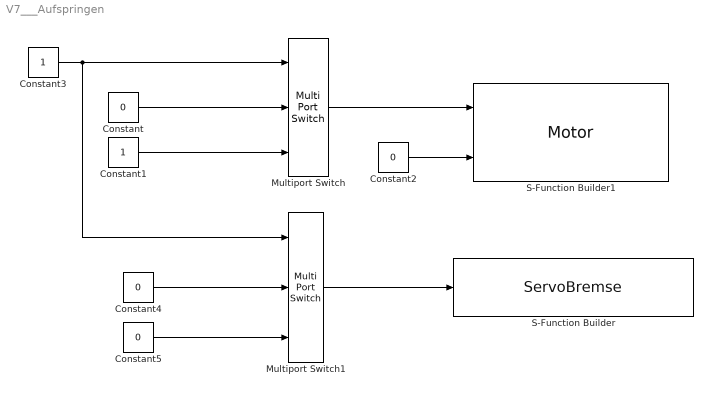
/*
 * Academic License - for use in teaching, academic research, and meeting
 * course requirements at degree granting institutions only.  Not for
 * government, commercial, or other organizational use.
 *
 * File: V7___Aufspringen.c
 *
 * Code generated for Simulink model 'V7___Aufspringen'.
 *
 * Model version                  : 1.8
 * Simulink Coder version         : 8.10 (R2016a) 10-Feb-2016
 * C/C++ source code generated on : Sun Aug 28 14:40:47 2016
 *
 * Target selection: ert.tlc
 * Embedded hardware selection: ARM Compatible->ARM Cortex
 * Code generation objectives: Unspecified
 * Validation result: Not run
 */

#include "V7___Aufspringen.h"
#include "V7___Aufspringen_private.h"
#include "V7___Aufspringen_dt.h"

/* Block signals (auto storage) */
B_V7___Aufspringen_T V7___Aufspringen_B;

/* Real-time model */
RT_MODEL_V7___Aufspringen_T V7___Aufspringen_M_;
RT_MODEL_V7___Aufspringen_T *const V7___Aufspringen_M = &V7___Aufspringen_M_;

/* Model step function */
void V7___Aufspringen_step(void)
{
  /* MultiPortSwitch: '<Root>/Multiport Switch1' incorporates:
   *  Constant: '<Root>/Constant3'
   *  Constant: '<Root>/Constant4'
   *  Constant: '<Root>/Constant5'
   */
  if ((int32_T)V7___Aufspringen_P.Constant3_Value == 1) {
    V7___Aufspringen_B.MultiportSwitch1 = V7___Aufspringen_P.Constant4_Value;
  } else {
    V7___Aufspringen_B.MultiportSwitch1 = V7___Aufspringen_P.Constant5_Value;
  }

  /* End of MultiPortSwitch: '<Root>/Multiport Switch1' */

  /* S-Function (ServoBremse): '<Root>/S-Function Builder' */
  ServoBremse_Outputs_wrapper(&V7___Aufspringen_B.MultiportSwitch1 );

  /* MultiPortSwitch: '<Root>/Multiport Switch' incorporates:
   *  Constant: '<Root>/Constant'
   *  Constant: '<Root>/Constant1'
   *  Constant: '<Root>/Constant3'
   */
  if ((int32_T)V7___Aufspringen_P.Constant3_Value == 1) {
    V7___Aufspringen_B.MultiportSwitch = V7___Aufspringen_P.Constant_Value;
  } else {
    V7___Aufspringen_B.MultiportSwitch = V7___Aufspringen_P.Constant1_Value;
  }

  /* End of MultiPortSwitch: '<Root>/Multiport Switch' */

  /* S-Function (Motor): '<Root>/S-Function Builder1' */
  Motor_Outputs_wrapper(&V7___Aufspringen_B.MultiportSwitch,
                        &V7___Aufspringen_P.Constant2_Value );

  /* External mode */
  rtExtModeUploadCheckTrigger(1);

  {                                    /* Sample time: [0.02s, 0.0s] */
    rtExtModeUpload(0, V7___Aufspringen_M->Timing.taskTime0);
  }

  /* signal main to stop simulation */
  {                                    /* Sample time: [0.02s, 0.0s] */
    if ((rtmGetTFinal(V7___Aufspringen_M)!=-1) &&
        !((rtmGetTFinal(V7___Aufspringen_M)-V7___Aufspringen_M->Timing.taskTime0)
          > V7___Aufspringen_M->Timing.taskTime0 * (DBL_EPSILON))) {
      rtmSetErrorStatus(V7___Aufspringen_M, "Simulation finished");
    }

    if (rtmGetStopRequested(V7___Aufspringen_M)) {
      rtmSetErrorStatus(V7___Aufspringen_M, "Simulation finished");
    }
  }

  /* Update absolute time for base rate */
  /* The "clockTick0" counts the number of times the code of this task has
   * been executed. The absolute time is the multiplication of "clockTick0"
   * and "Timing.stepSize0". Size of "clockTick0" ensures timer will not
   * overflow during the application lifespan selected.
   * Timer of this task consists of two 32 bit unsigned integers.
   * The two integers represent the low bits Timing.clockTick0 and the high bits
   * Timing.clockTickH0. When the low bit overflows to 0, the high bits increment.
   */
  if (!(++V7___Aufspringen_M->Timing.clockTick0)) {
    ++V7___Aufspringen_M->Timing.clockTickH0;
  }

  V7___Aufspringen_M->Timing.taskTime0 = V7___Aufspringen_M->Timing.clockTick0 *
    V7___Aufspringen_M->Timing.stepSize0 +
    V7___Aufspringen_M->Timing.clockTickH0 *
    V7___Aufspringen_M->Timing.stepSize0 * 4294967296.0;
}
